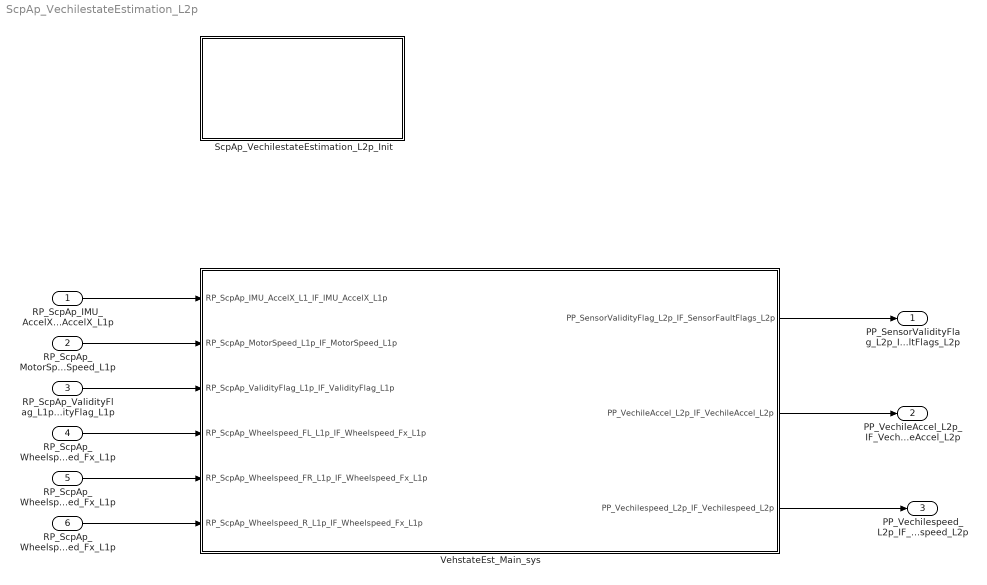
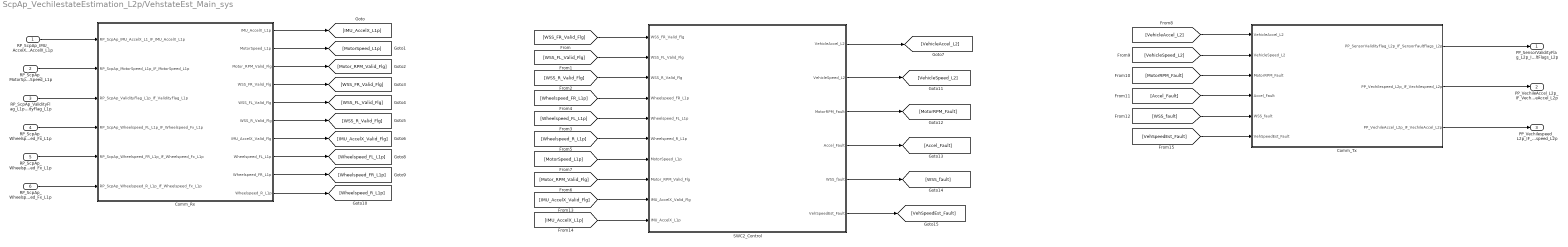
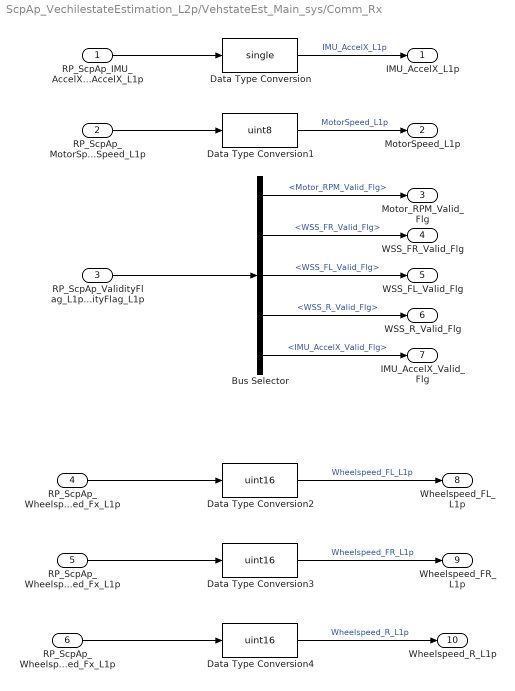
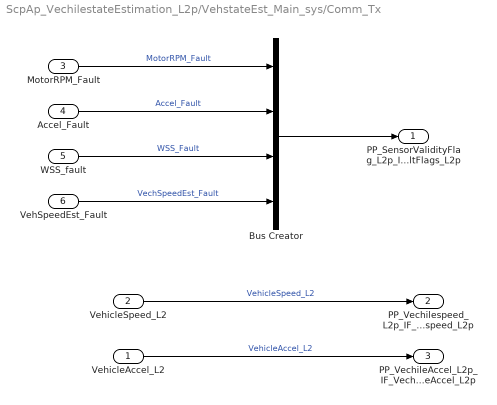
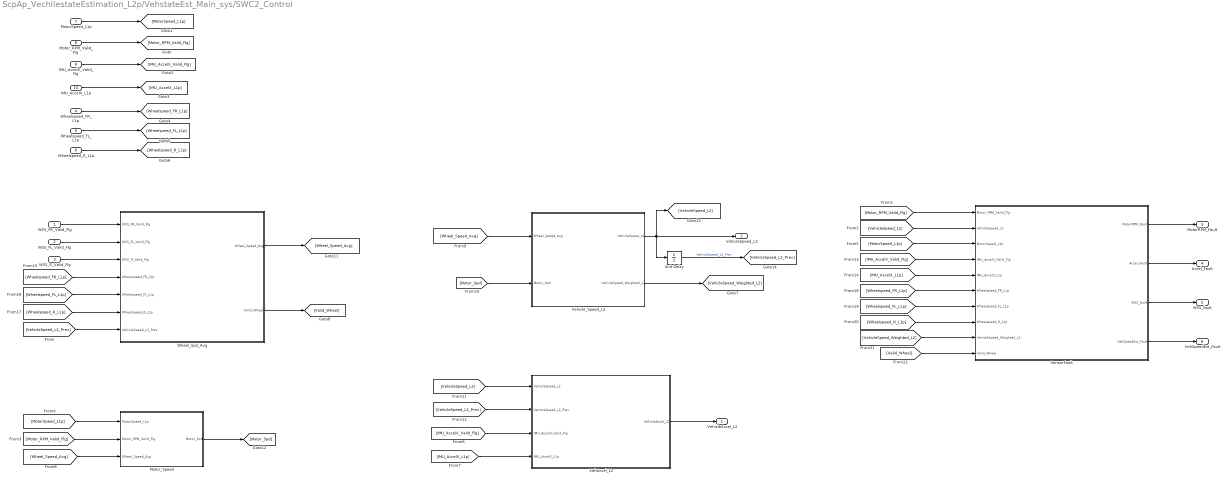
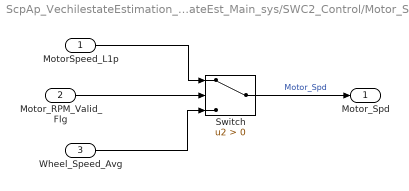
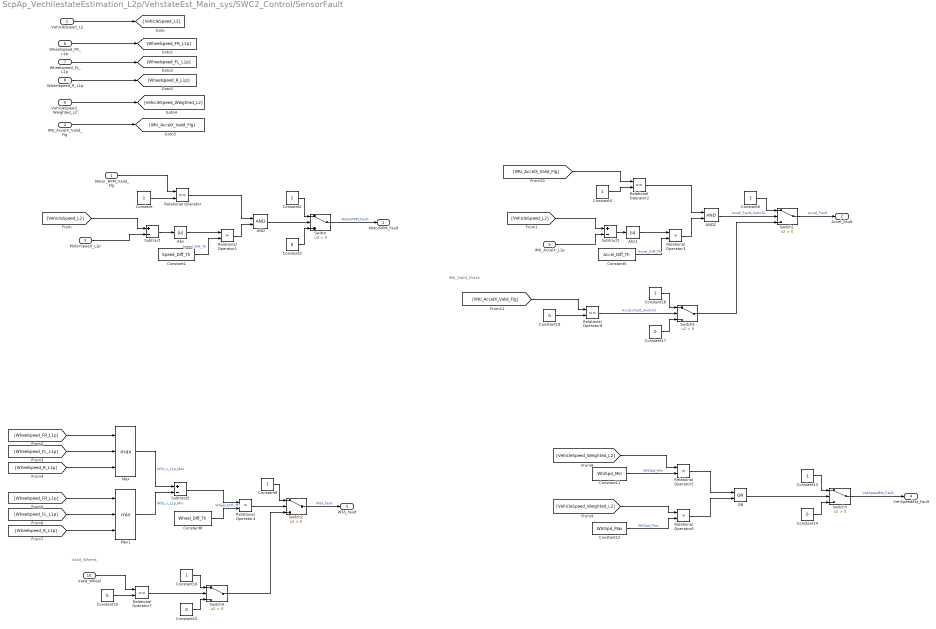
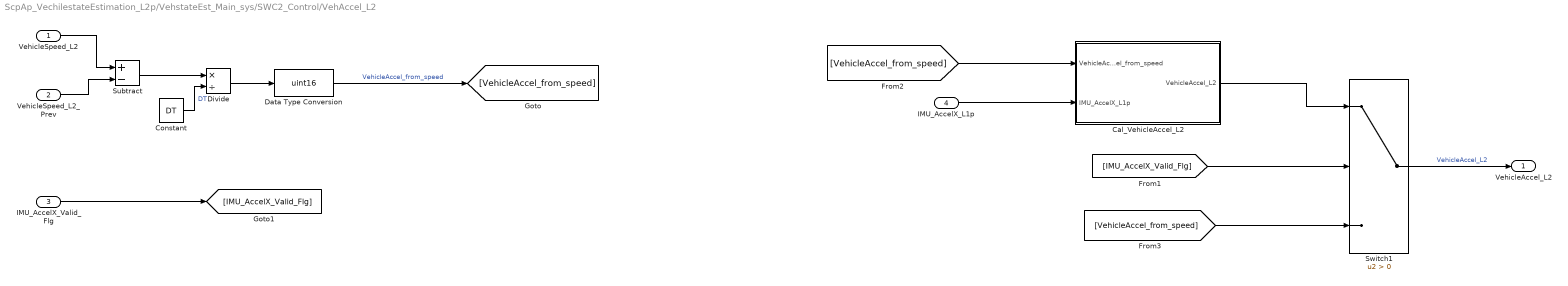
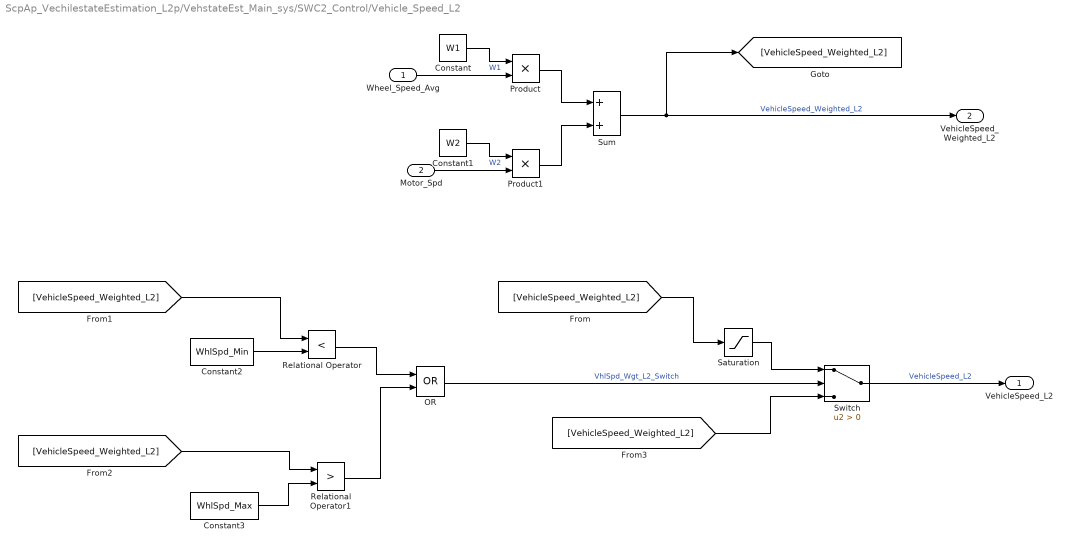
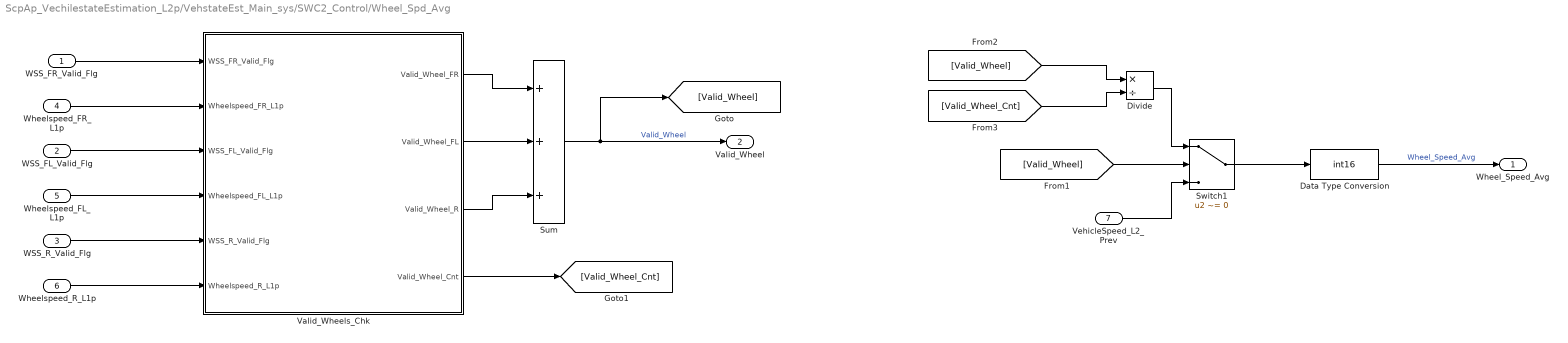
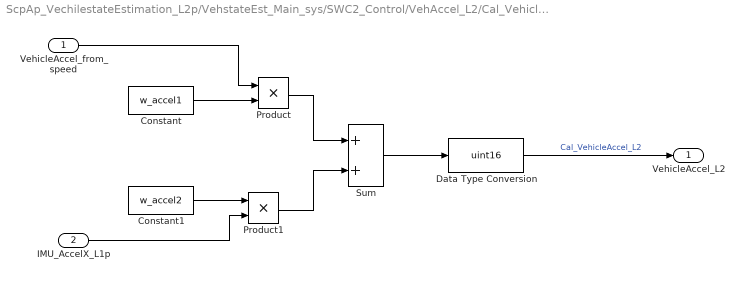
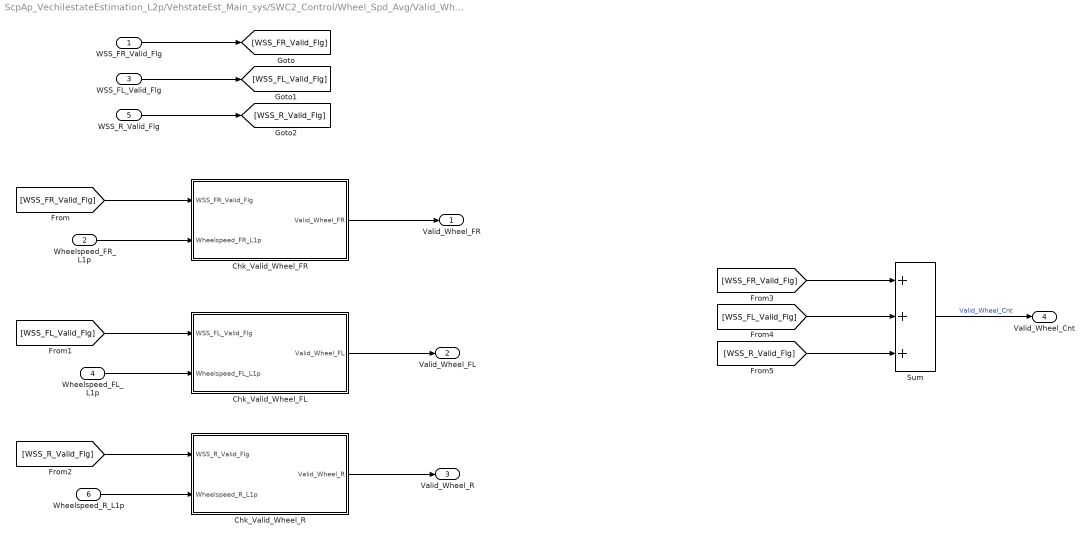
== system ScpAp_VechilestateEstimation_L2p/ScpAp_VechilestateEstimation_L2p_Init ==
  Event Listener : EventListener  EventName=reset

== system ScpAp_VechilestateEstimation_L2p/VehstateEst_Main_sys/SWC2_Control/Wheel_Spd_Avg/Valid_Wheels_Chk/Chk_Valid_Wheel_FL ==
  WSS_FL_Valid_Flg : Inport
  Wheelspeed_FL_L1p : Inport  Port=2
  Constant : Constant  Value=0
  Switch : Switch  Criteria=u2 > Threshold  SaturateOnIntegerOverflow=off  InputSameDT=off
  Valid_Wheel_FL : Outport
  wires:
  WSS_FL_Valid_Flg/1 -> Switch/2
  Wheelspeed_FL_L1p/1 -> Switch/1
  Constant/1 -> Switch/3
  Switch/1 -> Valid_Wheel_FL/1  "Valid_Wheel_FL"

== system ScpAp_VechilestateEstimation_L2p/VehstateEst_Main_sys/SWC2_Control/Wheel_Spd_Avg/Valid_Wheels_Chk/Chk_Valid_Wheel_FR ==
  WSS_FR_Valid_Flg : Inport
  Wheelspeed_FR_L1p : Inport  Port=2
  Constant : Constant  Value=0
  Switch : Switch  Criteria=u2 > Threshold  SaturateOnIntegerOverflow=off  InputSameDT=off
  Valid_Wheel_FR : Outport
  wires:
  WSS_FR_Valid_Flg/1 -> Switch/2
  Wheelspeed_FR_L1p/1 -> Switch/1
  Constant/1 -> Switch/3
  Switch/1 -> Valid_Wheel_FR/1  "Valid_Wheel_FR"

== system ScpAp_VechilestateEstimation_L2p/VehstateEst_Main_sys/SWC2_Control/Wheel_Spd_Avg/Valid_Wheels_Chk/Chk_Valid_Wheel_R ==
  WSS_R_Valid_Flg : Inport
  Wheelspeed_R_L1p : Inport  Port=2
  Constant : Constant  Value=0
  Switch : Switch  Criteria=u2 > Threshold  SaturateOnIntegerOverflow=off  InputSameDT=off
  Valid_Wheel_R : Outport
  wires:
  Switch/1 -> Valid_Wheel_R/1  "Valid_Wheel_R"
  Constant/1 -> Switch/3
  Wheelspeed_R_L1p/1 -> Switch/1
  WSS_R_Valid_Flg/1 -> Switch/2

/*
 * Academic License - for use in teaching, academic research, and meeting
 * course requirements at degree granting institutions only.  Not for
 * government, commercial, or other organizational use.
 *
 * File: ScpAp_VechilestateEstimation_L2p.c
 *
 * Code generated for Simulink model 'ScpAp_VechilestateEstimation_L2p'.
 *
 * Model version                  : 1.117
 * Simulink Coder version         : 25.2 (R2025b) 28-Jul-2025
 * C/C++ source code generated on : Sun Feb  8 17:48:14 2026
 *
 * Target selection: autosar.tlc
 * Embedded hardware selection: Intel->x86-64 (Windows64)
 * Code generation objectives: Unspecified
 * Validation result: Not run
 */

#include "ScpAp_VechilestateEstimation_L2p.h"
#include <math.h>
#include "Platform_Types.h"
#include "Rte_Type.h"

/* Exported data definition */

/* Const memory section */
/* Definition for custom storage class: Const */
const uint16 WhlSpd_Max = 32U;         /* Referenced by:
                                        * '<S7>/Constant12'
                                        * '<S9>/Constant3'
                                        */

/* PublicStructure Variables for Internal Data */
ARID_DEF_ScpAp_VechilestateEs_T ScpAp_VechilestateEsti_ARID_DEF;
                /* '<Root>/PP_SensorValidityFlag_L2p_IF_SensorFaultFlags_L2p' */

/* Static Memory for Internal Data */

/* SwAddrMethod ASW_Variables for Internal Data */
#define ScpAp_VechilestateEstimation_L2p_START_SEC_ASW_Variables
#include "ScpAp_VechilestateEstimation_L2p_MemMap.h"

float64 ScpAp_VechilestateE_Valid_Wheel;/* '<S10>/Sum' */
float64 ScpAp_Vechilestat_Valid_Wheel_R;/* '<S15>/Switch' */
float64 ScpAp_Vechilesta_Valid_Wheel_FR;/* '<S14>/Switch' */
float64 ScpAp_Vechilesta_Valid_Wheel_FL;/* '<S13>/Switch' */
float32 ScpAp_Vechilesta_IMU_AccelX_L1p;/* '<S3>/Data Type Conversion' */
sint16 ScpAp_Vechilest_Wheel_Speed_Avg;/* '<S10>/Data Type Conversion' */
sint16 ScpAp_VehicleSpeed_Weighted_L2; /* '<S9>/Sum' */
sint16 ScpAp_Vechilest_VehicleSpeed_L2;/* '<S9>/Switch' */
sint16 ScpAp_VechilestateEst_Motor_Spd;/* '<S6>/Switch' */
sint16 VehicleSpeed_L2_Prev;           /* '<S5>/Unit Delay' */
uint16 ScpAp_Vechile_Wheelspeed_FL_L1p;/* '<S3>/Data Type Conversion2' */
uint16 ScpAp_Vechile_Wheelspeed_FR_L1p;/* '<S3>/Data Type Conversion3' */
uint16 ScpAp_Vechiles_Wheelspeed_R_L1p;/* '<S3>/Data Type Conversion4' */
uint16 ScpAp_V_VehicleAccel_from_speed;/* '<S8>/Data Type Conversion' */
uint16 ScpAp_Vechilest_VehicleAccel_L2;/* '<S8>/Switch1' */
uint16 ScpAp_Vechi_Cal_VehicleAccel_L2;/* '<S11>/Data Type Conversion' */
uint16 ScpAp_Vechilestat_WSS_x_L1p_Max;/* '<S7>/Max' */
uint16 ScpAp_Vechilestat_WSS_x_L1p_Min;/* '<S7>/Max1' */
uint8 ScpAp_Vechilesta_MotorSpeed_L1p; /* '<S3>/Data Type Conversion1' */
uint8 ScpAp_Vechilest_Valid_Wheel_Cnt; /* '<S12>/Sum' */
boolean ScpAp_Vech_VhlSpd_Wgt_L2_Switch;/* '<S9>/OR' */
boolean ScpAp_Vechilesta_MotorRPM_Fault;/* '<S7>/Switch' */
boolean ScpAp_VechilestateE_Accel_Fault;/* '<S7>/Switch1' */
boolean ScpAp_VechilestateEst_WSS_fault;/* '<S7>/Switch2' */
boolean ScpAp_Vechile_VehSpeedEst_Fault;/* '<S7>/Switch3' */

#define ScpAp_VechilestateEstimation_L2p_STOP_SEC_ASW_Variables
#include "ScpAp_VechilestateEstimation_L2p_MemMap.h"

/* Model step function */

/* SwAddrMethod CODE for Runnable */
#define ScpAp_VechilestateEstimation_L2p_START_SEC_CODE
#include "ScpAp_VechilestateEstimation_L2p_MemMap.h"

void VehstateEst_Main(void)
{
  IF_ValidityFlag_L1p_IDT rtb_TmpSignalConversionAtRP_Scp;
  float64 rtb_Sum;
  sint16 u;

  /* DataTypeConversion: '<S3>/Data Type Conversion4' incorporates:
   *  Inport: '<Root>/RP_ScpAp_Wheelspeed_R_L1p_IF_Wheelspeed_Fx_L1p'
   */
  (void)Rte_Read_RP_ScpAp_Wheelspeed_R_L1p_IF_Wheelspeed_Fx_L1p
    (&ScpAp_Vechiles_Wheelspeed_R_L1p);

  /* DataTypeConversion: '<S3>/Data Type Conversion3' incorporates:
   *  Inport: '<Root>/RP_ScpAp_Wheelspeed_FR_L1p_IF_Wheelspeed_Fx_L1p'
   */
  (void)Rte_Read_RP_ScpAp_Wheelspeed_FR_L1p_IF_Wheelspeed_Fx_L1p
    (&ScpAp_Vechile_Wheelspeed_FR_L1p);

  /* DataTypeConversion: '<S3>/Data Type Conversion2' incorporates:
   *  Inport: '<Root>/RP_ScpAp_Wheelspeed_FL_L1p_IF_Wheelspeed_Fx_L1p'
   */
  (void)Rte_Read_RP_ScpAp_Wheelspeed_FL_L1p_IF_Wheelspeed_Fx_L1p
    (&ScpAp_Vechile_Wheelspeed_FL_L1p);

  /* DataTypeConversion: '<S3>/Data Type Conversion' incorporates:
   *  Inport: '<Root>/RP_ScpAp_IMU_AccelX_L1_IF_IMU_AccelX_L1p'
   */
  (void)Rte_Read_RP_ScpAp_IMU_AccelX_L1_IF_IMU_AccelX_L1p
    (&ScpAp_Vechilesta_IMU_AccelX_L1p);

  /* SignalConversion generated from: '<Root>/RP_ScpAp_ValidityFlag_L1p_IF_ValidityFlag_L1p' incorporates:
   *  Inport: '<Root>/RP_ScpAp_ValidityFlag_L1p_IF_ValidityFlag_L1p'
   */
  (void)Rte_Read_RP_ScpAp_ValidityFlag_L1p_IF_ValidityFlag_L1p
    (&rtb_TmpSignalConversionAtRP_Scp);

  /* Outputs for Atomic SubSystem: '<Root>/VehstateEst_Main_sys' */
  /* DataTypeConversion: '<S3>/Data Type Conversion1' incorporates:
   *  Inport: '<Root>/RP_ScpAp_MotorSpeed_L1p_IF_MotorSpeed_L1p'
   */
  ScpAp_Vechilesta_MotorSpeed_L1p =
    Rte_IRead_VehstateEst_Main_RP_ScpAp_MotorSpeed_L1p_IF_MotorSpeed_L1p_RP_ScpAp_MotorSpeed_L1p_IF_MotorSpeed_L1p
    ();

  /* Outputs for Atomic SubSystem: '<S2>/SWC2_Control' */
  /* Outputs for Atomic SubSystem: '<S5>/Wheel_Spd_Avg' */
  /* Outputs for Atomic SubSystem: '<S10>/Valid_Wheels_Chk' */
  /* Outputs for Atomic SubSystem: '<S12>/Chk_Valid_Wheel_FL' */
  /* Switch: '<S13>/Switch' */
  if (rtb_TmpSignalConversionAtRP_Scp.WSS_FL_Valid_Flg) {
    /* Switch: '<S13>/Switch' */
    ScpAp_Vechilesta_Valid_Wheel_FL = ScpAp_Vechile_Wheelspeed_FL_L1p;
  } else {
    /* Switch: '<S13>/Switch' incorporates:
     *  Constant: '<S13>/Constant'
     */
    ScpAp_Vechilesta_Valid_Wheel_FL = 0.0;
  }

  /* End of Switch: '<S13>/Switch' */
  /* End of Outputs for SubSystem: '<S12>/Chk_Valid_Wheel_FL' */

  /* Outputs for Atomic SubSystem: '<S12>/Chk_Valid_Wheel_FR' */
  /* Switch: '<S14>/Switch' */
  if (rtb_TmpSignalConversionAtRP_Scp.WSS_FR_Valid_Flg) {
    /* Switch: '<S14>/Switch' */
    ScpAp_Vechilesta_Valid_Wheel_FR = ScpAp_Vechile_Wheelspeed_FR_L1p;
  } else {
    /* Switch: '<S14>/Switch' incorporates:
     *  Constant: '<S14>/Constant'
     */
    ScpAp_Vechilesta_Valid_Wheel_FR = 0.0;
  }

  /* End of Switch: '<S14>/Switch' */
  /* End of Outputs for SubSystem: '<S12>/Chk_Valid_Wheel_FR' */

  /* Outputs for Atomic SubSystem: '<S12>/Chk_Valid_Wheel_R' */
  /* Switch: '<S15>/Switch' */
  if (rtb_TmpSignalConversionAtRP_Scp.WSS_R_Valid_Flg) {
    /* Switch: '<S15>/Switch' */
    ScpAp_Vechilestat_Valid_Wheel_R = ScpAp_Vechiles_Wheelspeed_R_L1p;
  } else {
    /* Switch: '<S15>/Switch' incorporates:
     *  Constant: '<S15>/Constant'
     */
    ScpAp_Vechilestat_Valid_Wheel_R = 0.0;
  }

  /* End of Switch: '<S15>/Switch' */
  /* End of Outputs for SubSystem: '<S12>/Chk_Valid_Wheel_R' */

  /* Sum: '<S12>/Sum' */
  ScpAp_Vechilest_Valid_Wheel_Cnt = (uint8)(((uint32)
    rtb_TmpSignalConversionAtRP_Scp.WSS_FR_Valid_Flg +
    rtb_TmpSignalConversionAtRP_Scp.WSS_FL_Valid_Flg) +
    rtb_TmpSignalConversionAtRP_Scp.WSS_R_Valid_Flg);

  /* End of Outputs for SubSystem: '<S10>/Valid_Wheels_Chk' */

  /* Sum: '<S10>/Sum' */
  ScpAp_VechilestateE_Valid_Wheel = (ScpAp_Vechilesta_Valid_Wheel_FR +
    ScpAp_Vechilesta_Valid_Wheel_FL) + ScpAp_Vechilestat_Valid_Wheel_R;

  /* Switch: '<S10>/Switch1' */
  if (ScpAp_VechilestateE_Valid_Wheel != 0.0) {
    /* Sum: '<S11>/Sum' incorporates:
     *  Product: '<S10>/Divide'
     */
    rtb_Sum = ScpAp_VechilestateE_Valid_Wheel / (float64)
      ScpAp_Vechilest_Valid_Wheel_Cnt;
  } else {
    /* Sum: '<S11>/Sum' incorporates:
     *  UnitDelay: '<S5>/Unit Delay'
     */
    rtb_Sum = VehicleSpeed_L2_Prev;
  }

  /* End of Switch: '<S10>/Switch1' */

  /* DataTypeConversion: '<S10>/Data Type Conversion' */
  rtb_Sum = fmod(floor(rtb_Sum), 65536.0);
  if (rtb_Sum < 0.0) {
    /* DataTypeConversion: '<S10>/Data Type Conversion' */
    ScpAp_Vechilest_Wheel_Speed_Avg = (sint16)-(sint16)(uint16)-rtb_Sum;
  } else {
    /* DataTypeConversion: '<S10>/Data Type Conversion' */
    ScpAp_Vechilest_Wheel_Speed_Avg = (sint16)(uint16)rtb_Sum;
  }

  /* End of DataTypeConversion: '<S10>/Data Type Conversion' */
  /* End of Outputs for SubSystem: '<S5>/Wheel_Spd_Avg' */

  /* Outputs for Atomic SubSystem: '<S5>/Motor_Speed' */
  /* Switch: '<S6>/Switch' */
  if (rtb_TmpSignalConversionAtRP_Scp.Motor_RPM_Valid_Flg) {
    /* Switch: '<S6>/Switch' */
    ScpAp_VechilestateEst_Motor_Spd = ScpAp_Vechilesta_MotorSpeed_L1p;
  } else {
    /* Switch: '<S6>/Switch' */
    ScpAp_VechilestateEst_Motor_Spd = ScpAp_Vechilest_Wheel_Speed_Avg;
  }

  /* End of Switch: '<S6>/Switch' */
  /* End of Outputs for SubSystem: '<S5>/Motor_Speed' */

  /* Outputs for Atomic SubSystem: '<S5>/Vehicle_Speed_L2' */
  /* Sum: '<S9>/Sum' incorporates:
   *  Constant: '<S9>/Constant'
   *  Constant: '<S9>/Constant1'
   *  Product: '<S9>/Product'
   *  Product: '<S9>/Product1'
   */
  ScpAp_VehicleSpeed_Weighted_L2 = (sint16)((sint16)(W1 *
    ScpAp_Vechilest_Wheel_Speed_Avg) + (sint16)(W2 *
    ScpAp_VechilestateEst_Motor_Spd));

  /* Outputs for Atomic SubSystem: '<S5>/SensorFault' */
  /* Logic: '<S9>/OR' incorporates:
   *  Constant: '<S9>/Constant3'
   *  Logic: '<S7>/OR'
   *  RelationalOperator: '<S9>/Relational Operator'
   *  RelationalOperator: '<S9>/Relational Operator1'
   */
  ScpAp_Vech_VhlSpd_Wgt_L2_Switch = ((ScpAp_VehicleSpeed_Weighted_L2 < 0) ||
    (ScpAp_VehicleSpeed_Weighted_L2 > WhlSpd_Max));

  /* End of Outputs for SubSystem: '<S5>/SensorFault' */

  /* Switch: '<S9>/Switch' */
  if (ScpAp_Vech_VhlSpd_Wgt_L2_Switch) {
    /* Saturate: '<S9>/Saturation' */
    if (ScpAp_VehicleSpeed_Weighted_L2 > 32) {
      /* Switch: '<S9>/Switch' */
      ScpAp_Vechilest_VehicleSpeed_L2 = 32;
    } else if (ScpAp_VehicleSpeed_Weighted_L2 < 0) {
      /* Switch: '<S9>/Switch' */
      ScpAp_Vechilest_VehicleSpeed_L2 = 0;
    } else {
      /* Switch: '<S9>/Switch' */
      ScpAp_Vechilest_VehicleSpeed_L2 = ScpAp_VehicleSpeed_Weighted_L2;
    }
  } else {
    /* Switch: '<S9>/Switch' incorporates:
     *  Saturate: '<S9>/Saturation'
     */
    ScpAp_Vechilest_VehicleSpeed_L2 = ScpAp_VehicleSpeed_Weighted_L2;
  }

  /* End of Switch: '<S9>/Switch' */
  /* End of Outputs for SubSystem: '<S5>/Vehicle_Speed_L2' */

  /* Outputs for Atomic SubSystem: '<S5>/SensorFault' */
  /* Sum: '<S7>/Subtract' */
  u = (sint16)(ScpAp_Vechilest_VehicleSpeed_L2 - ScpAp_Vechilesta_MotorSpeed_L1p);

  /* Abs: '<S7>/Abs' */
  if (u < 0) {
    u = (sint16)-u;
  }

  /* Switch: '<S7>/Switch' incorporates:
   *  Abs: '<S7>/Abs'
   *  Constant: '<S7>/Constant1'
   *  Logic: '<S7>/AND'
   *  RelationalOperator: '<S7>/Relational Operator'
   *  RelationalOperator: '<S7>/Relational Operator1'
   */
  ScpAp_Vechilesta_MotorRPM_Fault =
    (rtb_TmpSignalConversionAtRP_Scp.Motor_RPM_Valid_Flg && (u > Speed_Diff_Th));

  /* Switch: '<S7>/Switch1' incorporates:
   *  Abs: '<S7>/Abs1'
   *  Constant: '<S7>/Constant5'
   *  Logic: '<S7>/AND2'
   *  RelationalOperator: '<S7>/Relational Operator2'
   *  RelationalOperator: '<S7>/Relational Operator3'
   *  Sum: '<S7>/Subtract1'
   */
  if (rtb_TmpSignalConversionAtRP_Scp.IMU_AccelX_Valid_Flg && (fabsf((float32)
        ScpAp_Vechilest_VehicleSpeed_L2 - ScpAp_Vechilesta_IMU_AccelX_L1p) >
       Accel_Diff_Th)) {
    /* Switch: '<S7>/Switch1' incorporates:
     *  Constant: '<S7>/Constant6'
     */
    ScpAp_VechilestateE_Accel_Fault = TRUE;
  } else {
    /* Switch: '<S7>/Switch1' incorporates:
     *  RelationalOperator: '<S7>/Relational Operator8'
     */
    ScpAp_VechilestateE_Accel_Fault =
      !rtb_TmpSignalConversionAtRP_Scp.IMU_AccelX_Valid_Flg;
  }

  /* End of Switch: '<S7>/Switch1' */

  /* MinMax: '<S7>/Max' */
  if (ScpAp_Vechile_Wheelspeed_FR_L1p >= ScpAp_Vechile_Wheelspeed_FL_L1p) {
    ScpAp_Vechilestat_WSS_x_L1p_Max = ScpAp_Vechile_Wheelspeed_FR_L1p;
  } else {
    ScpAp_Vechilestat_WSS_x_L1p_Max = ScpAp_Vechile_Wheelspeed_FL_L1p;
  }

  if (ScpAp_Vechilestat_WSS_x_L1p_Max < ScpAp_Vechiles_Wheelspeed_R_L1p) {
    /* MinMax: '<S7>/Max' */
    ScpAp_Vechilestat_WSS_x_L1p_Max = ScpAp_Vechiles_Wheelspeed_R_L1p;
  }

  /* End of MinMax: '<S7>/Max' */

  /* MinMax: '<S7>/Max1' */
  if (ScpAp_Vechile_Wheelspeed_FR_L1p <= ScpAp_Vechile_Wheelspeed_FL_L1p) {
    ScpAp_Vechilestat_WSS_x_L1p_Min = ScpAp_Vechile_Wheelspeed_FR_L1p;
  } else {
    ScpAp_Vechilestat_WSS_x_L1p_Min = ScpAp_Vechile_Wheelspeed_FL_L1p;
  }

  if (ScpAp_Vechilestat_WSS_x_L1p_Min > ScpAp_Vechiles_Wheelspeed_R_L1p) {
    /* MinMax: '<S7>/Max1' */
    ScpAp_Vechilestat_WSS_x_L1p_Min = ScpAp_Vechiles_Wheelspeed_R_L1p;
  }

  /* End of MinMax: '<S7>/Max1' */

  /* Switch: '<S7>/Switch2' incorporates:
   *  Constant: '<S7>/Constant8'
   *  RelationalOperator: '<S7>/Relational Operator4'
   *  Sum: '<S7>/Subtract2'
   */
  if ((uint16)(ScpAp_Vechilestat_WSS_x_L1p_Max - ScpAp_Vechilestat_WSS_x_L1p_Min)
      > Wheel_Diff_Th) {
    /* Switch: '<S7>/Switch2' incorporates:
     *  Constant: '<S7>/Constant9'
     */
    ScpAp_VechilestateEst_WSS_fault = TRUE;
  } else {
    /* Switch: '<S7>/Switch2' incorporates:
     *  Constant: '<S7>/Constant10'
     *  RelationalOperator: '<S7>/Relational Operator7'
     */
    ScpAp_VechilestateEst_WSS_fault = (ScpAp_VechilestateE_Valid_Wheel == 0.0);
  }

  /* End of Switch: '<S7>/Switch2' */

  /* Switch: '<S7>/Switch3' */
  ScpAp_Vechile_VehSpeedEst_Fault = ScpAp_Vech_VhlSpd_Wgt_L2_Switch;

  /* End of Outputs for SubSystem: '<S5>/SensorFault' */

  /* Outputs for Atomic SubSystem: '<S5>/VehAccel_L2' */
  /* DataTypeConversion: '<S8>/Data Type Conversion' incorporates:
   *  Constant: '<S8>/Constant'
   *  Product: '<S8>/Divide'
   *  Sum: '<S8>/Subtract'
   *  UnitDelay: '<S5>/Unit Delay'
   */
  rtb_Sum = fmod(floor((float64)(sint16)(ScpAp_Vechilest_VehicleSpeed_L2 -
    VehicleSpeed_L2_Prev) / DT), 65536.0);
  if (rtb_Sum < 0.0) {
    /* DataTypeConversion: '<S8>/Data Type Conversion' */
    ScpAp_V_VehicleAccel_from_speed = (uint16)-(sint16)(uint16)-rtb_Sum;
  } else {
    /* DataTypeConversion: '<S8>/Data Type Conversion' */
    ScpAp_V_VehicleAccel_from_speed = (uint16)rtb_Sum;
  }

  /* End of DataTypeConversion: '<S8>/Data Type Conversion' */

  /* Outputs for Atomic SubSystem: '<S8>/Cal_VehicleAccel_L2 ' */
  /* DataTypeConversion: '<S11>/Data Type Conversion' incorporates:
   *  Constant: '<S11>/Constant'
   *  Constant: '<S11>/Constant1'
   *  Product: '<S11>/Product'
   *  Product: '<S11>/Product1'
   *  Sum: '<S11>/Sum'
   */
  rtb_Sum = fmod(floor((float64)ScpAp_V_VehicleAccel_from_speed * 0.75 + 0.25 *
                       ScpAp_Vechilesta_IMU_AccelX_L1p), 65536.0);
  if (rtb_Sum < 0.0) {
    /* DataTypeConversion: '<S11>/Data Type Conversion' */
    ScpAp_Vechi_Cal_VehicleAccel_L2 = (uint16)-(sint16)(uint16)-rtb_Sum;
  } else {
    /* DataTypeConversion: '<S11>/Data Type Conversion' */
    ScpAp_Vechi_Cal_VehicleAccel_L2 = (uint16)rtb_Sum;
  }

  /* End of DataTypeConversion: '<S11>/Data Type Conversion' */
  /* End of Outputs for SubSystem: '<S8>/Cal_VehicleAccel_L2 ' */

  /* Switch: '<S8>/Switch1' */
  if (rtb_TmpSignalConversionAtRP_Scp.IMU_AccelX_Valid_Flg) {
    /* Switch: '<S8>/Switch1' */
    ScpAp_Vechilest_VehicleAccel_L2 = ScpAp_Vechi_Cal_VehicleAccel_L2;
  } else {
    /* Switch: '<S8>/Switch1' */
    ScpAp_Vechilest_VehicleAccel_L2 = ScpAp_V_VehicleAccel_from_speed;
  }

  /* End of Switch: '<S8>/Switch1' */
  /* End of Outputs for SubSystem: '<S5>/VehAccel_L2' */

  /* Update for UnitDelay: '<S5>/Unit Delay' */
  VehicleSpeed_L2_Prev = ScpAp_Vechilest_VehicleSpeed_L2;

  /* End of Outputs for SubSystem: '<S2>/SWC2_Control' */
  /* End of Outputs for SubSystem: '<Root>/VehstateEst_Main_sys' */

  /* Outport: '<Root>/PP_SensorValidityFlag_L2p_IF_SensorFaultFlags_L2p' incorporates:
   *  BusCreator generated from: '<Root>/PP_SensorValidityFlag_L2p_IF_SensorFaultFlags_L2p'
   */
  ScpAp_VechilestateEsti_ARID_DEF.PP_SensorValidityFlag_L2p_IF_Se.MotorRPM_Fault
    = ScpAp_Vechilesta_MotorRPM_Fault;
  ScpAp_VechilestateEsti_ARID_DEF.PP_SensorValidityFlag_L2p_IF_Se.Accel_Fault =
    ScpAp_VechilestateE_Accel_Fault;
  ScpAp_VechilestateEsti_ARID_DEF.PP_SensorValidityFlag_L2p_IF_Se.WSS_Fault =
    ScpAp_VechilestateEst_WSS_fault;
  ScpAp_VechilestateEsti_ARID_DEF.PP_SensorValidityFlag_L2p_IF_Se.VechSpeedEst_Fault
    = ScpAp_Vechile_VehSpeedEst_Fault;

  /* Outport: '<Root>/PP_VechileAccel_L2p_IF_VechileAccel_L2p' */
  (void)Rte_Write_PP_VechileAccel_L2p_IF_VechileAccel_L2p
    (ScpAp_Vechilest_VehicleSpeed_L2);

  /* Outport: '<Root>/PP_Vechilespeed_L2p_IF_Vechilespeed_L2p' */
  (void)Rte_Write_PP_Vechilespeed_L2p_IF_Vechilespeed_L2p
    (ScpAp_Vechilest_VehicleAccel_L2);
  (void)Rte_Write_PP_SensorValidityFlag_L2p_IF_SensorFaultFlags_L2p
    (&ScpAp_VechilestateEsti_ARID_DEF.PP_SensorValidityFlag_L2p_IF_Se);
}
